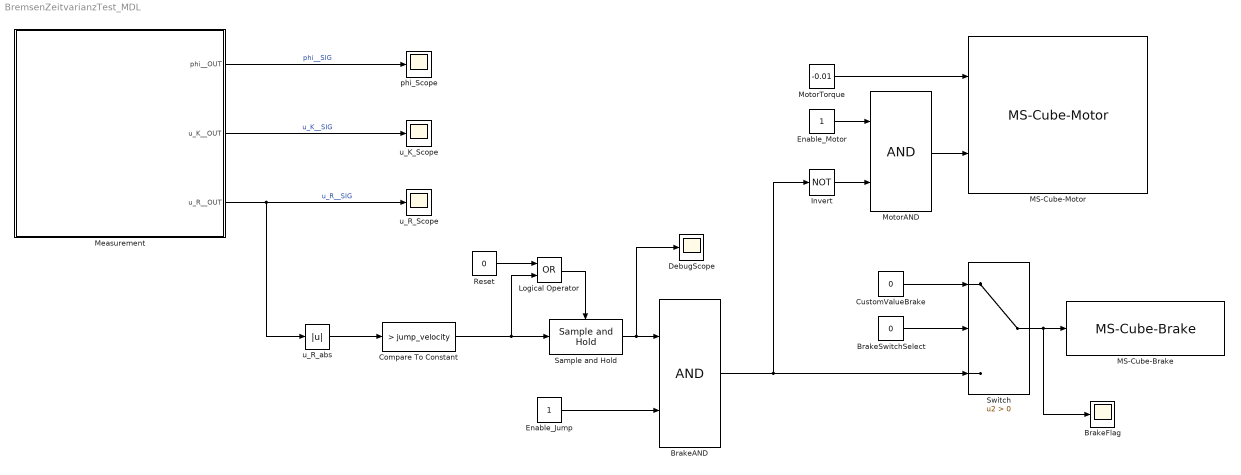
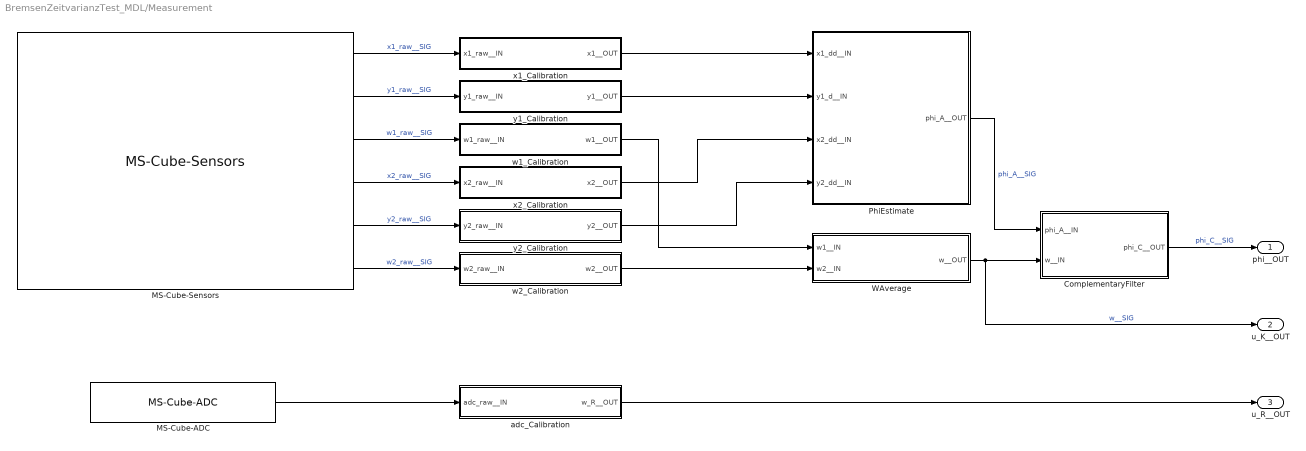
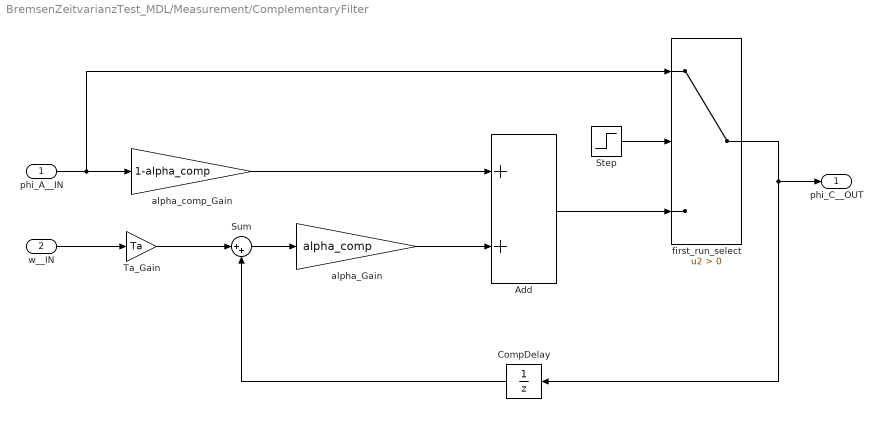
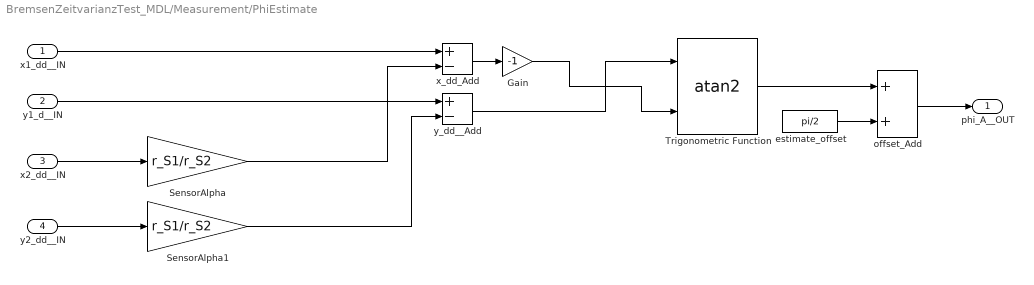
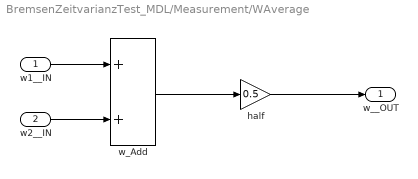
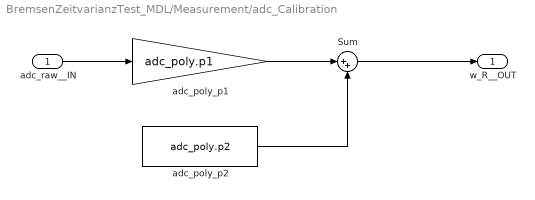
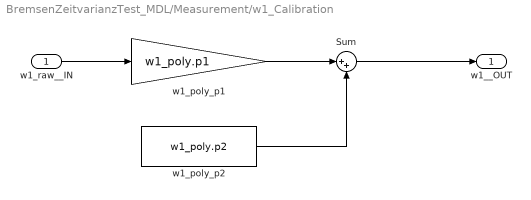
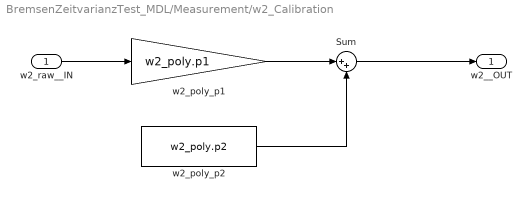
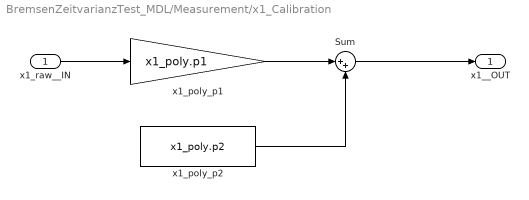
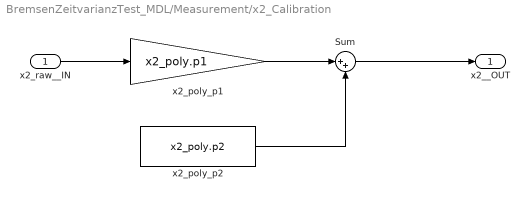
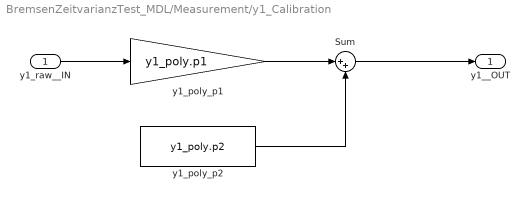
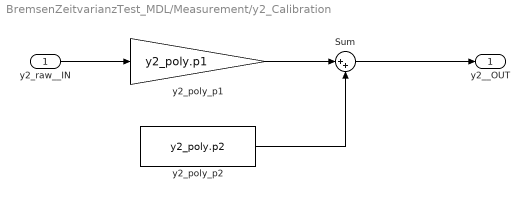
/*
 * Academic License - for use in teaching, academic research, and meeting
 * course requirements at degree granting institutions only.  Not for
 * government, commercial, or other organizational use.
 *
 * File: BremsenZeitvarianzTest_MDL.c
 *
 * Code generated for Simulink model 'BremsenZeitvarianzTest_MDL'.
 *
 * Model version                  : 1.40
 * Simulink Coder version         : 8.11 (R2016b) 25-Aug-2016
 * C/C++ source code generated on : Thu Jul 20 14:28:21 2017
 *
 * Target selection: ert.tlc
 * Embedded hardware selection: ARM Compatible->ARM Cortex
 * Code generation objectives: Unspecified
 * Validation result: Not run
 */

#include "BremsenZeitvarianzTest_MDL.h"
#include "BremsenZeitvarianzTest_MDL_private.h"
#include "BremsenZeitvarianzTest_MDL_dt.h"

/* Block signals (auto storage) */
B_BremsenZeitvarianzTest_MDL_T BremsenZeitvarianzTest_MDL_B;

/* Block states (auto storage) */
DW_BremsenZeitvarianzTest_MDL_T BremsenZeitvarianzTest_MDL_DW;

/* Previous zero-crossings (trigger) states */
PrevZCX_BremsenZeitvarianzTes_T BremsenZeitvarianzTest__PrevZCX;

/* Real-time model */
RT_MODEL_BremsenZeitvarianzTe_T BremsenZeitvarianzTest_MDL_M_;
RT_MODEL_BremsenZeitvarianzTe_T *const BremsenZeitvarianzTest_MDL_M =
  &BremsenZeitvarianzTest_MDL_M_;
real_T rt_atan2d_snf(real_T u0, real_T u1)
{
  real_T y;
  int32_T u0_0;
  int32_T u1_0;
  if (rtIsNaN(u0) || rtIsNaN(u1)) {
    y = (rtNaN);
  } else if (rtIsInf(u0) && rtIsInf(u1)) {
    if (u0 > 0.0) {
      u0_0 = 1;
    } else {
      u0_0 = -1;
    }

    if (u1 > 0.0) {
      u1_0 = 1;
    } else {
      u1_0 = -1;
    }

    y = atan2(u0_0, u1_0);
  } else if (u1 == 0.0) {
    if (u0 > 0.0) {
      y = RT_PI / 2.0;
    } else if (u0 < 0.0) {
      y = -(RT_PI / 2.0);
    } else {
      y = 0.0;
    }
  } else {
    y = atan2(u0, u1);
  }

  return y;
}

/* Model step function */
void BremsenZeitvarianzTest_MDL_step(void)
{
  real_T currentTime;
  boolean_T rtb_Compare;
  boolean_T rtb_LogicalOperator;
  real_T rtb_offset_Add;

  /* Reset subsysRan breadcrumbs */
  srClearBC(BremsenZeitvarianzTest_MDL_DW.SampleandHold_SubsysRanBC);

  /* S-Function (MS_Cube_ADC): '<S2>/MS-Cube-ADC' */
  unsigned short testVar = MS_Cube_ADC_Output();
  BremsenZeitvarianzTest_MDL_B.MSCubeADC = (real32_T)testVar;

  /* Sum: '<S7>/Sum' incorporates:
   *  Constant: '<S7>/adc_poly_p2'
   *  Gain: '<S7>/adc_poly_p1'
   */
  BremsenZeitvarianzTest_MDL_B.Sum =
    BremsenZeitvarianzTest_MDL_P.adc_poly_p1_Gain *
    BremsenZeitvarianzTest_MDL_B.MSCubeADC +
    BremsenZeitvarianzTest_MDL_P.adc_poly_p2_Value;

  /* RelationalOperator: '<S1>/Compare' incorporates:
   *  Abs: '<Root>/u_R_abs'
   *  Constant: '<S1>/Constant'
   */
  rtb_Compare = (fabs(BremsenZeitvarianzTest_MDL_B.Sum) >
                 BremsenZeitvarianzTest_MDL_P.jump_velocity);

  /* Logic: '<Root>/Logical Operator' incorporates:
   *  Constant: '<Root>/Reset'
   */
  rtb_LogicalOperator = (BremsenZeitvarianzTest_MDL_P.Reset_Value || rtb_Compare);

  /* Outputs for Triggered SubSystem: '<Root>/Sample and Hold' incorporates:
   *  TriggerPort: '<S3>/Trigger'
   */
  if (rtb_LogicalOperator &&
      (BremsenZeitvarianzTest__PrevZCX.SampleandHold_Trig_ZCE != POS_ZCSIG)) {
    /* Inport: '<S3>/In' */
    BremsenZeitvarianzTest_MDL_B.In = rtb_Compare;
    BremsenZeitvarianzTest_MDL_DW.SampleandHold_SubsysRanBC = 4;
  }

  BremsenZeitvarianzTest__PrevZCX.SampleandHold_Trig_ZCE = rtb_LogicalOperator;

  /* End of Outputs for SubSystem: '<Root>/Sample and Hold' */

  /* Logic: '<Root>/BrakeAND' incorporates:
   *  Constant: '<Root>/Enable_Jump'
   */
  rtb_Compare = (BremsenZeitvarianzTest_MDL_B.In &&
                 BremsenZeitvarianzTest_MDL_P.Enable_Jump_Value);

  /* Switch: '<Root>/Switch' incorporates:
   *  Constant: '<Root>/BrakeSwitchSelect'
   *  Constant: '<Root>/CustomValueBrake'
   */
  if (BremsenZeitvarianzTest_MDL_P.BrakeSwitchSelect_Value >
      BremsenZeitvarianzTest_MDL_P.Switch_Threshold) {
    BremsenZeitvarianzTest_MDL_B.Switch =
      BremsenZeitvarianzTest_MDL_P.CustomValueBrake_Value;
  } else {
    BremsenZeitvarianzTest_MDL_B.Switch = rtb_Compare;
  }

  /* End of Switch: '<Root>/Switch' */

  /* S-Function (MS_Cube_Brake): '<Root>/MS-Cube-Brake' */
  MS_Cube_Brake_Output(BremsenZeitvarianzTest_MDL_B.Switch);

  /* S-Function (MS_Cube_Motor): '<Root>/MS-Cube-Motor' */
  MS_Cube_Motor_Output(&BremsenZeitvarianzTest_MDL_P.MotorTorque_Value,
                       BremsenZeitvarianzTest_MDL_B.MotorAND);

  /* S-Function (MS_Cube_Sensors): '<S2>/MS-Cube-Sensors' */
  MS_Cube_Sensors_Output(&BremsenZeitvarianzTest_MDL_B.x1_raw__SIG,
    &BremsenZeitvarianzTest_MDL_B.y1_raw__SIG,
    &BremsenZeitvarianzTest_MDL_B.w1_raw__SIG,
    &BremsenZeitvarianzTest_MDL_B.x2_raw__SIG,
    &BremsenZeitvarianzTest_MDL_B.y2_raw__SIG,
    &BremsenZeitvarianzTest_MDL_B.w2_raw__SIG);

  /* Sum: '<S5>/offset_Add' incorporates:
   *  Constant: '<S10>/x1_poly_p2'
   *  Constant: '<S11>/x2_poly_p2'
   *  Constant: '<S12>/y1_poly_p2'
   *  Constant: '<S13>/y2_poly_p2'
   *  Constant: '<S5>/estimate_offset'
   *  Gain: '<S10>/x1_poly_p1'
   *  Gain: '<S11>/x2_poly_p1'
   *  Gain: '<S12>/y1_poly_p1'
   *  Gain: '<S13>/y2_poly_p1'
   *  Gain: '<S5>/Gain'
   *  Gain: '<S5>/SensorAlpha'
   *  Gain: '<S5>/SensorAlpha1'
   *  Sum: '<S10>/Sum'
   *  Sum: '<S11>/Sum'
   *  Sum: '<S12>/Sum'
   *  Sum: '<S13>/Sum'
   *  Sum: '<S5>/x_dd_Add'
   *  Sum: '<S5>/y_dd__Add'
   *  Trigonometry: '<S5>/Trigonometric Function'
   */
  rtb_offset_Add = rt_atan2d_snf((BremsenZeitvarianzTest_MDL_P.y1_poly_p1_Gain *
    BremsenZeitvarianzTest_MDL_B.y1_raw__SIG +
    BremsenZeitvarianzTest_MDL_P.y1_poly_p2_Value) -
    (BremsenZeitvarianzTest_MDL_P.y2_poly_p1_Gain *
     BremsenZeitvarianzTest_MDL_B.y2_raw__SIG +
     BremsenZeitvarianzTest_MDL_P.y2_poly_p2_Value) *
    (BremsenZeitvarianzTest_MDL_P.r_S1 / BremsenZeitvarianzTest_MDL_P.r_S2),
    ((BremsenZeitvarianzTest_MDL_P.x1_poly_p1_Gain *
      BremsenZeitvarianzTest_MDL_B.x1_raw__SIG +
      BremsenZeitvarianzTest_MDL_P.x1_poly_p2_Value) -
     (BremsenZeitvarianzTest_MDL_P.x2_poly_p1_Gain *
      BremsenZeitvarianzTest_MDL_B.x2_raw__SIG +
      BremsenZeitvarianzTest_MDL_P.x2_poly_p2_Value) *
     (BremsenZeitvarianzTest_MDL_P.r_S1 / BremsenZeitvarianzTest_MDL_P.r_S2)) *
    BremsenZeitvarianzTest_MDL_P.Gain_Gain) +
    BremsenZeitvarianzTest_MDL_P.estimate_offset_Value;

  /* Step: '<S4>/Step' */
  currentTime = BremsenZeitvarianzTest_MDL_M->Timing.taskTime0;

  /* Gain: '<S6>/half' incorporates:
   *  Constant: '<S8>/w1_poly_p2'
   *  Constant: '<S9>/w2_poly_p2'
   *  Gain: '<S8>/w1_poly_p1'
   *  Gain: '<S9>/w2_poly_p1'
   *  Sum: '<S6>/w_Add'
   *  Sum: '<S8>/Sum'
   *  Sum: '<S9>/Sum'
   */
  BremsenZeitvarianzTest_MDL_B.half =
    ((BremsenZeitvarianzTest_MDL_P.w1_poly_p1_Gain *
      BremsenZeitvarianzTest_MDL_B.w1_raw__SIG +
      BremsenZeitvarianzTest_MDL_P.w1_poly_p2_Value) +
     (BremsenZeitvarianzTest_MDL_P.w2_poly_p1_Gain *
      BremsenZeitvarianzTest_MDL_B.w2_raw__SIG +
      BremsenZeitvarianzTest_MDL_P.w2_poly_p2_Value)) *
    BremsenZeitvarianzTest_MDL_P.half_Gain;

  /* Step: '<S4>/Step' */
  if (currentTime < BremsenZeitvarianzTest_MDL_P.Ta) {
    currentTime = BremsenZeitvarianzTest_MDL_P.Step_Y0;
  } else {
    currentTime = BremsenZeitvarianzTest_MDL_P.Step_YFinal;
  }

  /* Switch: '<S4>/first_run_select' incorporates:
   *  Gain: '<S4>/Ta_Gain'
   *  Gain: '<S4>/alpha_Gain'
   *  Gain: '<S4>/alpha_comp_Gain'
   *  Sum: '<S4>/Add'
   *  Sum: '<S4>/Sum'
   *  UnitDelay: '<S4>/CompDelay'
   */
  if (currentTime > BremsenZeitvarianzTest_MDL_P.first_run_select_Threshold) {
    BremsenZeitvarianzTest_MDL_B.first_run_select = rtb_offset_Add;
  } else {
    BremsenZeitvarianzTest_MDL_B.first_run_select =
      (BremsenZeitvarianzTest_MDL_P.Ta * BremsenZeitvarianzTest_MDL_B.half +
       BremsenZeitvarianzTest_MDL_B.first_run_select) *
      BremsenZeitvarianzTest_MDL_P.alpha_comp + (1.0 -
      BremsenZeitvarianzTest_MDL_P.alpha_comp) * rtb_offset_Add;
  }

  /* End of Switch: '<S4>/first_run_select' */

  /* Logic: '<Root>/MotorAND' incorporates:
   *  Constant: '<Root>/Enable_Motor'
   *  Logic: '<Root>/Invert'
   */
  BremsenZeitvarianzTest_MDL_B.MotorAND =
    (BremsenZeitvarianzTest_MDL_P.Enable_Motor_Value && (!rtb_Compare));

  /* External mode */
  rtExtModeUploadCheckTrigger(1);

  {                                    /* Sample time: [0.02s, 0.0s] */
    rtExtModeUpload(0, BremsenZeitvarianzTest_MDL_M->Timing.taskTime0);
  }

  /* signal main to stop simulation */
  {                                    /* Sample time: [0.02s, 0.0s] */
    if ((rtmGetTFinal(BremsenZeitvarianzTest_MDL_M)!=-1) &&
        !((rtmGetTFinal(BremsenZeitvarianzTest_MDL_M)-
           BremsenZeitvarianzTest_MDL_M->Timing.taskTime0) >
          BremsenZeitvarianzTest_MDL_M->Timing.taskTime0 * (DBL_EPSILON))) {
      rtmSetErrorStatus(BremsenZeitvarianzTest_MDL_M, "Simulation finished");
    }

    if (rtmGetStopRequested(BremsenZeitvarianzTest_MDL_M)) {
      rtmSetErrorStatus(BremsenZeitvarianzTest_MDL_M, "Simulation finished");
    }
  }

  /* Update absolute time for base rate */
  /* The "clockTick0" counts the number of times the code of this task has
   * been executed. The absolute time is the multiplication of "clockTick0"
   * and "Timing.stepSize0". Size of "clockTick0" ensures timer will not
   * overflow during the application lifespan selected.
   */
  BremsenZeitvarianzTest_MDL_M->Timing.taskTime0 =
    (++BremsenZeitvarianzTest_MDL_M->Timing.clockTick0) *
    BremsenZeitvarianzTest_MDL_M->Timing.stepSize0;
}
